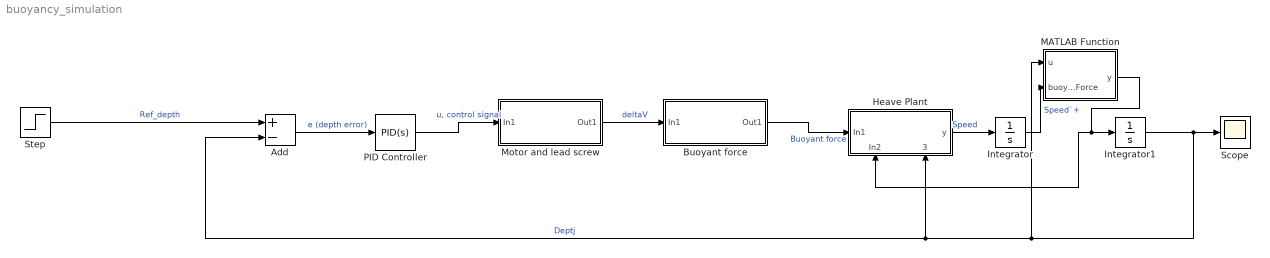
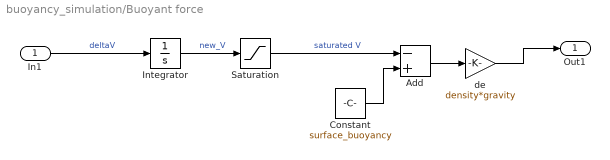
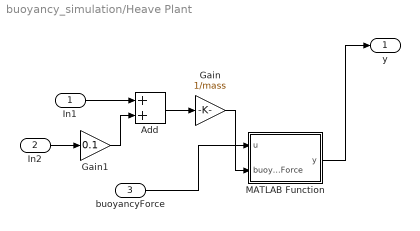
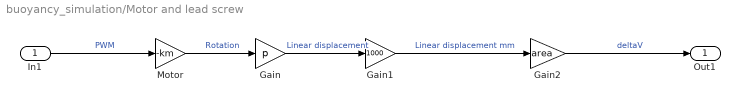
== matlab function buoyancy_simulation/Heave Plant/MATLAB Function ==
function y = fcn(u, buoyancyForce)
    if u > 0.1 && buoyancyForce > 0
        y = 0;
    else
        y = buoyancyForce;
    end
end

== matlab function buoyancy_simulation/MATLAB Function ==
function y = fcn(u, buoyancyForce)
    if u > 0.1 && buoyancyForce > 0
        y = 0;
    else
        y = buoyancyForce;
    end
end

/*
 * buoyancy_simulation.c
 *
 * Academic License - for use in teaching, academic research, and meeting
 * course requirements at degree granting institutions only.  Not for
 * government, commercial, or other organizational use.
 *
 * Code generation for model "buoyancy_simulation".
 *
 * Model version              : 1.6
 * Simulink Coder version : 25.1 (R2025a) 21-Nov-2024
 * C source code generated on : Wed Mar 18 08:08:46 2026
 *
 * Target selection: grt.tlc
 * Note: GRT includes extra infrastructure and instrumentation for prototyping
 * Embedded hardware selection: Intel->x86-64 (Windows64)
 * Code generation objectives: Unspecified
 * Validation result: Not run
 */

#include "buoyancy_simulation.h"
#include "rtwtypes.h"
#include "buoyancy_simulation_private.h"

/* Block signals (default storage) */
B_buoyancy_simulation_T buoyancy_simulation_B;

/* Continuous states */
X_buoyancy_simulation_T buoyancy_simulation_X;

/* Disabled State Vector */
XDis_buoyancy_simulation_T buoyancy_simulation_XDis;

/* Real-time model */
static RT_MODEL_buoyancy_simulation_T buoyancy_simulation_M_;
RT_MODEL_buoyancy_simulation_T *const buoyancy_simulation_M =
  &buoyancy_simulation_M_;

/*
 * This function updates continuous states using the ODE3 fixed-step
 * solver algorithm
 */
static void rt_ertODEUpdateContinuousStates(RTWSolverInfo *si )
{
  /* Solver Matrices */
  static const real_T rt_ODE3_A[3] = {
    1.0/2.0, 3.0/4.0, 1.0
  };

  static const real_T rt_ODE3_B[3][3] = {
    { 1.0/2.0, 0.0, 0.0 },

    { 0.0, 3.0/4.0, 0.0 },

    { 2.0/9.0, 1.0/3.0, 4.0/9.0 }
  };

  time_T t = rtsiGetT(si);
  time_T tnew = rtsiGetSolverStopTime(si);
  time_T h = rtsiGetStepSize(si);
  real_T *x = rtsiGetContStates(si);
  ODE3_IntgData *id = (ODE3_IntgData *)rtsiGetSolverData(si);
  real_T *y = id->y;
  real_T *f0 = id->f[0];
  real_T *f1 = id->f[1];
  real_T *f2 = id->f[2];
  real_T hB[3];
  int_T i;
  int_T nXc = 5;
  rtsiSetSimTimeStep(si,MINOR_TIME_STEP);

  /* Save the state values at time t in y, we'll use x as ynew. */
  (void) memcpy(y, x,
                (uint_T)nXc*sizeof(real_T));

  /* Assumes that rtsiSetT and ModelOutputs are up-to-date */
  /* f0 = f(t,y) */
  rtsiSetdX(si, f0);
  buoyancy_simulation_derivatives();

  /* f(:,2) = feval(odefile, t + hA(1), y + f*hB(:,1), args(:)(*)); */
  hB[0] = h * rt_ODE3_B[0][0];
  for (i = 0; i < nXc; i++) {
    x[i] = y[i] + (f0[i]*hB[0]);
  }

  rtsiSetT(si, t + h*rt_ODE3_A[0]);
  rtsiSetdX(si, f1);
  buoyancy_simulation_step();
  buoyancy_simulation_derivatives();

  /* f(:,3) = feval(odefile, t + hA(2), y + f*hB(:,2), args(:)(*)); */
  for (i = 0; i <= 1; i++) {
    hB[i] = h * rt_ODE3_B[1][i];
  }

  for (i = 0; i < nXc; i++) {
    x[i] = y[i] + (f0[i]*hB[0] + f1[i]*hB[1]);
  }

  rtsiSetT(si, t + h*rt_ODE3_A[1]);
  rtsiSetdX(si, f2);
  buoyancy_simulation_step();
  buoyancy_simulation_derivatives();

  /* tnew = t + hA(3);
     ynew = y + f*hB(:,3); */
  for (i = 0; i <= 2; i++) {
    hB[i] = h * rt_ODE3_B[2][i];
  }

  for (i = 0; i < nXc; i++) {
    x[i] = y[i] + (f0[i]*hB[0] + f1[i]*hB[1] + f2[i]*hB[2]);
  }

  rtsiSetT(si, tnew);
  rtsiSetSimTimeStep(si,MAJOR_TIME_STEP);
}

/*
 * Output and update for atomic system:
 *    '<S2>/MATLAB Function'
 *    '<Root>/MATLAB Function'
 */
void buoyancy_simulat_MATLABFunction(real_T rtu_u, real_T rtu_buoyancyForce,
  B_MATLABFunction_buoyancy_sim_T *localB)
{
  if ((rtu_u > 0.1) && (rtu_buoyancyForce > 0.0)) {
    localB->y = 0.0;
  } else {
    localB->y = rtu_buoyancyForce;
  }
}

/* Model step function */
void buoyancy_simulation_step(void)
{
  /* local block i/o variables */
  real_T rtb_Speed;
  real_T rtb_Gain;
  real_T rtb_edeptherror;
  real_T tmp;
  if (rtmIsMajorTimeStep(buoyancy_simulation_M)) {
    /* set solver stop time */
    if (!(buoyancy_simulation_M->Timing.clockTick0+1)) {
      rtsiSetSolverStopTime(&buoyancy_simulation_M->solverInfo,
                            ((buoyancy_simulation_M->Timing.clockTickH0 + 1) *
        buoyancy_simulation_M->Timing.stepSize0 * 4294967296.0));
    } else {
      rtsiSetSolverStopTime(&buoyancy_simulation_M->solverInfo,
                            ((buoyancy_simulation_M->Timing.clockTick0 + 1) *
        buoyancy_simulation_M->Timing.stepSize0 +
        buoyancy_simulation_M->Timing.clockTickH0 *
        buoyancy_simulation_M->Timing.stepSize0 * 4294967296.0));
    }
  }                                    /* end MajorTimeStep */

  /* Update absolute time of base rate at minor time step */
  if (rtmIsMinorTimeStep(buoyancy_simulation_M)) {
    buoyancy_simulation_M->Timing.t[0] = rtsiGetT
      (&buoyancy_simulation_M->solverInfo);
  }

  /* Integrator: '<Root>/Integrator1' */
  buoyancy_simulation_B.Deptj = buoyancy_simulation_X.Integrator1_CSTATE;
  if (rtmIsMajorTimeStep(buoyancy_simulation_M)) {
  }

  /* Step: '<Root>/Step' */
  if (buoyancy_simulation_M->Timing.t[0] < buoyancy_simulation_P.Step_Time) {
    tmp = buoyancy_simulation_P.Step_Y0;
  } else {
    tmp = buoyancy_simulation_P.Step_YFinal;
  }

  /* Sum: '<Root>/Add' incorporates:
   *  Step: '<Root>/Step'
   */
  rtb_edeptherror = tmp - buoyancy_simulation_B.Deptj;

  /* Integrator: '<Root>/Integrator' */
  rtb_Speed = buoyancy_simulation_X.Integrator_CSTATE_o;

  /* MATLAB Function: '<Root>/MATLAB Function' */
  buoyancy_simulat_MATLABFunction(buoyancy_simulation_B.Deptj, rtb_Speed,
    &buoyancy_simulation_B.sf_MATLABFunction_a);

  /* Saturate: '<S1>/Saturation' incorporates:
   *  Integrator: '<S1>/Integrator'
   */
  if (buoyancy_simulation_X.Integrator_CSTATE >
      buoyancy_simulation_P.Saturation_UpperSat) {
    tmp = buoyancy_simulation_P.Saturation_UpperSat;
  } else if (buoyancy_simulation_X.Integrator_CSTATE <
             buoyancy_simulation_P.Saturation_LowerSat) {
    tmp = buoyancy_simulation_P.Saturation_LowerSat;
  } else {
    tmp = buoyancy_simulation_X.Integrator_CSTATE;
  }

  /* Gain: '<S2>/Gain' incorporates:
   *  Constant: '<S1>/Constant'
   *  Gain: '<S1>/de'
   *  Gain: '<S2>/Gain1'
   *  Saturate: '<S1>/Saturation'
   *  Sum: '<S1>/Add'
   *  Sum: '<S2>/Add'
   */
  rtb_Gain = (buoyancy_simulation_P.density * buoyancy_simulation_P.gravity *
              (buoyancy_simulation_P.surface_buoyancy - tmp) +
              buoyancy_simulation_P.Gain1_Gain *
              buoyancy_simulation_B.sf_MATLABFunction_a.y) * (1.0 /
    buoyancy_simulation_P.mass);

  /* MATLAB Function: '<S2>/MATLAB Function' */
  buoyancy_simulat_MATLABFunction(buoyancy_simulation_B.Deptj, rtb_Gain,
    &buoyancy_simulation_B.sf_MATLABFunction);

  /* Gain: '<S44>/Filter Coefficient' incorporates:
   *  Gain: '<S34>/Derivative Gain'
   *  Integrator: '<S36>/Filter'
   *  Sum: '<S36>/SumD'
   */
  buoyancy_simulation_B.FilterCoefficient =
    (buoyancy_simulation_P.PIDController_D * rtb_edeptherror -
     buoyancy_simulation_X.Filter_CSTATE) *
    buoyancy_simulation_P.PIDController_N;

  /* Gain: '<S4>/Gain2' incorporates:
   *  Gain: '<S46>/Proportional Gain'
   *  Gain: '<S4>/Gain'
   *  Gain: '<S4>/Gain1'
   *  Gain: '<S4>/Motor'
   *  Integrator: '<S41>/Integrator'
   *  Sum: '<S50>/Sum'
   */
  buoyancy_simulation_B.deltaV = ((buoyancy_simulation_P.PIDController_P *
    rtb_edeptherror + buoyancy_simulation_X.Integrator_CSTATE_f) +
    buoyancy_simulation_B.FilterCoefficient) * -buoyancy_simulation_P.km *
    buoyancy_simulation_P.p * buoyancy_simulation_P.Gain1_Gain_o *
    buoyancy_simulation_P.area;

  /* Gain: '<S38>/Integral Gain' */
  buoyancy_simulation_B.IntegralGain = buoyancy_simulation_P.PIDController_I *
    rtb_edeptherror;
  if (rtmIsMajorTimeStep(buoyancy_simulation_M)) {
    /* Matfile logging */
    rt_UpdateTXYLogVars(buoyancy_simulation_M->rtwLogInfo,
                        (buoyancy_simulation_M->Timing.t));
  }                                    /* end MajorTimeStep */

  if (rtmIsMajorTimeStep(buoyancy_simulation_M)) {
    /* signal main to stop simulation */
    {                                  /* Sample time: [0.0s, 0.0s] */
      if ((rtmGetTFinal(buoyancy_simulation_M)!=-1) &&
          !((rtmGetTFinal(buoyancy_simulation_M)-
             (((buoyancy_simulation_M->Timing.clockTick1+
                buoyancy_simulation_M->Timing.clockTickH1* 4294967296.0)) * 2.0))
            > (((buoyancy_simulation_M->Timing.clockTick1+
                 buoyancy_simulation_M->Timing.clockTickH1* 4294967296.0)) * 2.0)
            * (DBL_EPSILON))) {
        rtmSetErrorStatus(buoyancy_simulation_M, "Simulation finished");
      }
    }

    rt_ertODEUpdateContinuousStates(&buoyancy_simulation_M->solverInfo);

    /* Update absolute time for base rate */
    /* The "clockTick0" counts the number of times the code of this task has
     * been executed. The absolute time is the multiplication of "clockTick0"
     * and "Timing.stepSize0". Size of "clockTick0" ensures timer will not
     * overflow during the application lifespan selected.
     * Timer of this task consists of two 32 bit unsigned integers.
     * The two integers represent the low bits Timing.clockTick0 and the high bits
     * Timing.clockTickH0. When the low bit overflows to 0, the high bits increment.
     */
    if (!(++buoyancy_simulation_M->Timing.clockTick0)) {
      ++buoyancy_simulation_M->Timing.clockTickH0;
    }

    buoyancy_simulation_M->Timing.t[0] = rtsiGetSolverStopTime
      (&buoyancy_simulation_M->solverInfo);

    {
      /* Update absolute timer for sample time: [2.0s, 0.0s] */
      /* The "clockTick1" counts the number of times the code of this task has
       * been executed. The resolution of this integer timer is 2.0, which is the step size
       * of the task. Size of "clockTick1" ensures timer will not overflow during the
       * application lifespan selected.
       * Timer of this task consists of two 32 bit unsigned integers.
       * The two integers represent the low bits Timing.clockTick1 and the high bits
       * Timing.clockTickH1. When the low bit overflows to 0, the high bits increment.
       */
      buoyancy_simulation_M->Timing.clockTick1++;
      if (!buoyancy_simulation_M->Timing.clockTick1) {
        buoyancy_simulation_M->Timing.clockTickH1++;
      }
    }
  }                                    /* end MajorTimeStep */
}
